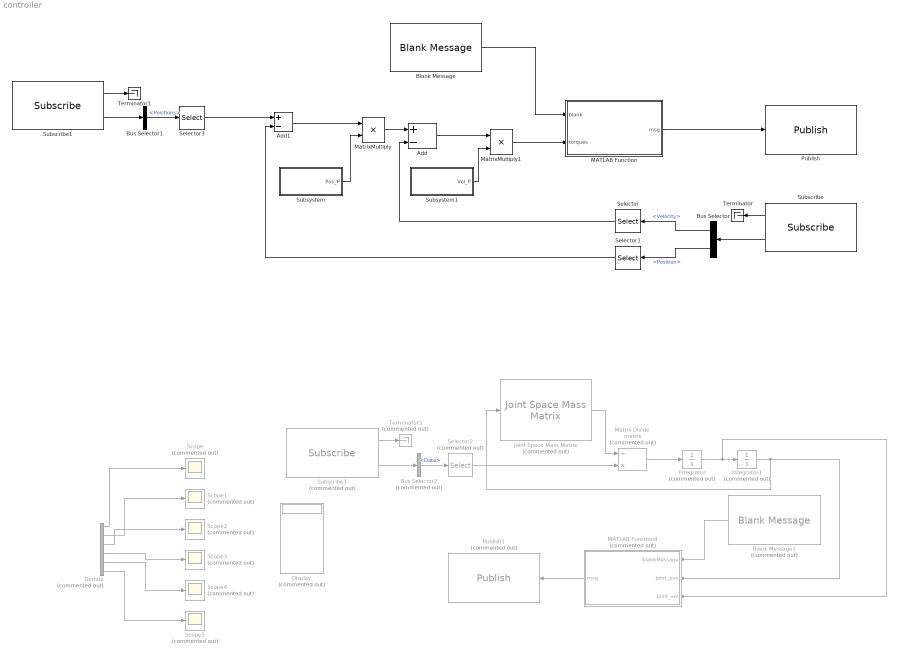
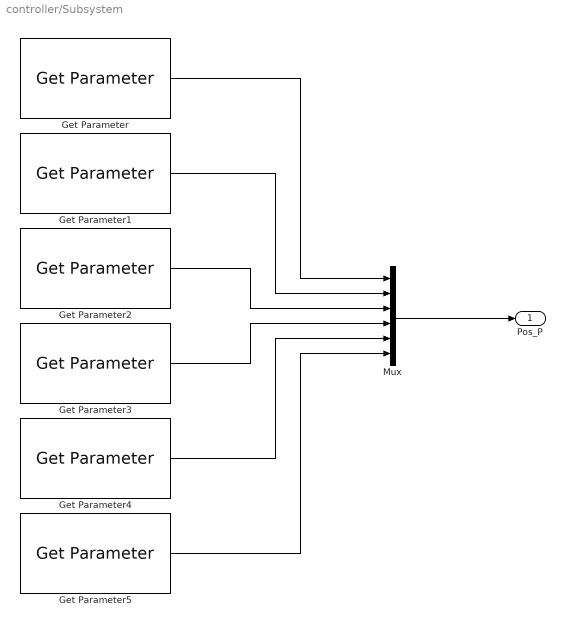
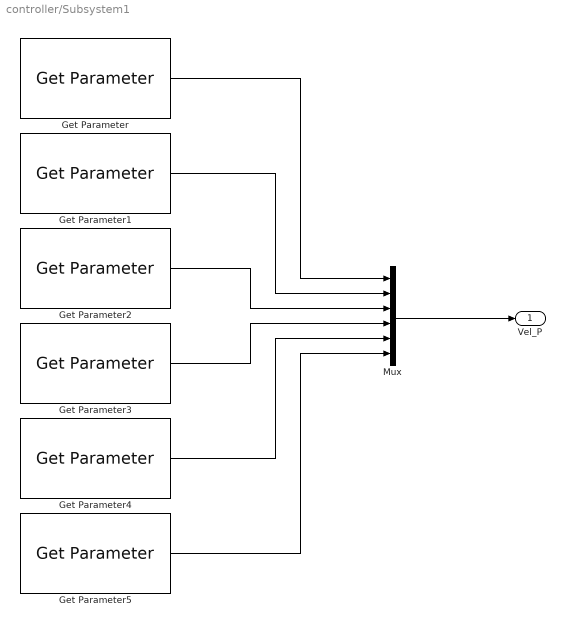
== matlab function controller/MATLAB Function4 ==
function msg = assign_message(blankMessage, joint_pos, joint_vel)

    msg = blankMessage;
    
    num_joints = length(joint_pos);
    
    msg.Position_SL_Info.CurrentLength = uint32(num_joints);
    msg.Velocity_SL_Info.CurrentLength = uint32(num_joints);
    
    for i=1:num_joints
        
        msg.Position(i) = joint_pos(i);
        msg.Velocity(i) = joint_vel(i);
        
    end

== matlab function controller/MATLAB Function ==
function msg = assign_message(blank, torques)

    msg = blank;
    num_joints = length(torques);

    for i=1:num_joints
        msg.Data(i) = torques(i);
    end

    msg.Data_SL_Info.CurrentLength = uint32(num_joints);

    msg.Layout.Dim_SL_Info.CurrentLength = uint32(1);

    msg.Layout.Dim(1).Size = uint32(num_joints);
    msg.Layout.Dim(1).Stride = uint32(num_joints);

//
// Academic License - for use in teaching, academic research, and meeting
// course requirements at degree granting institutions only.  Not for
// government, commercial, or other organizational use.
//
// File: controller.cpp
//
// Code generated for Simulink model 'controller'.
//
// Model version                  : 1.35
// Simulink Coder version         : 9.3 (R2020a) 18-Nov-2019
// C/C++ source code generated on : Wed May 27 21:29:22 2020
//
// Target selection: ert.tlc
// Embedded hardware selection: Generic->Unspecified (assume 32-bit Generic)
// Code generation objectives: Unspecified
// Validation result: Not run
//
#include "controller.h"
#include "controller_private.h"

// Block signals (default storage)
B_controller_T controller_B;

// Block states (default storage)
DW_controller_T controller_DW;

// Real-time model
RT_MODEL_controller_T controller_M_ = RT_MODEL_controller_T();
RT_MODEL_controller_T *const controller_M = &controller_M_;

// Forward declaration for local functions
static void controller_SystemCore_step_j(boolean_T *varargout_1, real_T
  varargout_2_Positions[128], uint32_T *varargout_2_Positions_SL_Info_C,
  uint32_T *varargout_2_Positions_SL_Info_R, real_T varargout_2_Velocities[128],
  uint32_T *varargout_2_Velocities_SL_Info_, uint32_T
  *varargout_2_Velocities_SL_Inf_0, real_T varargout_2_Accelerations[128],
  uint32_T *varargout_2_Accelerations_SL_In, uint32_T
  *varargout_2_Accelerations_SL__0, real_T varargout_2_Effort[128], uint32_T
  *varargout_2_Effort_SL_Info_Curr, uint32_T *varargout_2_Effort_SL_Info_Rece,
  real_T *varargout_2_TimeFromStart_Sec, real_T *varargout_2_TimeFromStart_Nsec);
static void controller_SystemCore_step(boolean_T *varargout_1,
  SL_Bus_controller_std_msgs_String varargout_2_Name[16], uint32_T
  *varargout_2_Name_SL_Info_Curren, uint32_T *varargout_2_Name_SL_Info_Receiv,
  real_T varargout_2_Position[128], uint32_T *varargout_2_Position_SL_Info_Cu,
  uint32_T *varargout_2_Position_SL_Info_Re, real_T varargout_2_Velocity[128],
  uint32_T *varargout_2_Velocity_SL_Info_Cu, uint32_T
  *varargout_2_Velocity_SL_Info_Re, real_T varargout_2_Effort[128], uint32_T
  *varargout_2_Effort_SL_Info_Curr, uint32_T *varargout_2_Effort_SL_Info_Rece,
  SL_Bus_controller_std_msgs_Header *varargout_2_Header);
static void matlabCodegenHandle_matlabCod_j(ros_slros_internal_block_Subs_T *obj);
static void matlabCodegenHandle_matlabC_jmq(ros_slros_internal_block_GetP_T *obj);
static void matlabCodegenHandle_matlabCodeg(ros_slros_internal_block_Publ_T *obj);
static void controller_SystemCore_step_j(boolean_T *varargout_1, real_T
  varargout_2_Positions[128], uint32_T *varargout_2_Positions_SL_Info_C,
  uint32_T *varargout_2_Positions_SL_Info_R, real_T varargout_2_Velocities[128],
  uint32_T *varargout_2_Velocities_SL_Info_, uint32_T
  *varargout_2_Velocities_SL_Inf_0, real_T varargout_2_Accelerations[128],
  uint32_T *varargout_2_Accelerations_SL_In, uint32_T
  *varargout_2_Accelerations_SL__0, real_T varargout_2_Effort[128], uint32_T
  *varargout_2_Effort_SL_Info_Curr, uint32_T *varargout_2_Effort_SL_Info_Rece,
  real_T *varargout_2_TimeFromStart_Sec, real_T *varargout_2_TimeFromStart_Nsec)
{
  *varargout_1 = Sub_controller_136.getLatestMessage
    (&controller_B.b_varargout_2_m);
  *varargout_2_Positions_SL_Info_C =
    controller_B.b_varargout_2_m.Positions_SL_Info.CurrentLength;
  *varargout_2_Positions_SL_Info_R =
    controller_B.b_varargout_2_m.Positions_SL_Info.ReceivedLength;
  *varargout_2_Velocities_SL_Info_ =
    controller_B.b_varargout_2_m.Velocities_SL_Info.CurrentLength;
  *varargout_2_Velocities_SL_Inf_0 =
    controller_B.b_varargout_2_m.Velocities_SL_Info.ReceivedLength;
  *varargout_2_Accelerations_SL_In =
    controller_B.b_varargout_2_m.Accelerations_SL_Info.CurrentLength;
  *varargout_2_Accelerations_SL__0 =
    controller_B.b_varargout_2_m.Accelerations_SL_Info.ReceivedLength;
  memcpy(&varargout_2_Positions[0], &controller_B.b_varargout_2_m.Positions[0],
         sizeof(real_T) << 7U);
  memcpy(&varargout_2_Velocities[0], &controller_B.b_varargout_2_m.Velocities[0],
         sizeof(real_T) << 7U);
  memcpy(&varargout_2_Accelerations[0],
         &controller_B.b_varargout_2_m.Accelerations[0], sizeof(real_T) << 7U);
  memcpy(&varargout_2_Effort[0], &controller_B.b_varargout_2_m.Effort[0], sizeof
         (real_T) << 7U);
  *varargout_2_Effort_SL_Info_Curr =
    controller_B.b_varargout_2_m.Effort_SL_Info.CurrentLength;
  *varargout_2_Effort_SL_Info_Rece =
    controller_B.b_varargout_2_m.Effort_SL_Info.ReceivedLength;
  *varargout_2_TimeFromStart_Sec =
    controller_B.b_varargout_2_m.TimeFromStart.Sec;
  *varargout_2_TimeFromStart_Nsec =
    controller_B.b_varargout_2_m.TimeFromStart.Nsec;
}

static void controller_SystemCore_step(boolean_T *varargout_1,
  SL_Bus_controller_std_msgs_String varargout_2_Name[16], uint32_T
  *varargout_2_Name_SL_Info_Curren, uint32_T *varargout_2_Name_SL_Info_Receiv,
  real_T varargout_2_Position[128], uint32_T *varargout_2_Position_SL_Info_Cu,
  uint32_T *varargout_2_Position_SL_Info_Re, real_T varargout_2_Velocity[128],
  uint32_T *varargout_2_Velocity_SL_Info_Cu, uint32_T
  *varargout_2_Velocity_SL_Info_Re, real_T varargout_2_Effort[128], uint32_T
  *varargout_2_Effort_SL_Info_Curr, uint32_T *varargout_2_Effort_SL_Info_Rece,
  SL_Bus_controller_std_msgs_Header *varargout_2_Header)
{
  *varargout_1 = Sub_controller_5.getLatestMessage(&controller_B.b_varargout_2);
  memcpy(&varargout_2_Name[0], &controller_B.b_varargout_2.Name[0], sizeof
         (SL_Bus_controller_std_msgs_String) << 4U);
  *varargout_2_Name_SL_Info_Curren =
    controller_B.b_varargout_2.Name_SL_Info.CurrentLength;
  *varargout_2_Name_SL_Info_Receiv =
    controller_B.b_varargout_2.Name_SL_Info.ReceivedLength;
  *varargout_2_Position_SL_Info_Cu =
    controller_B.b_varargout_2.Position_SL_Info.CurrentLength;
  *varargout_2_Position_SL_Info_Re =
    controller_B.b_varargout_2.Position_SL_Info.ReceivedLength;
  *varargout_2_Velocity_SL_Info_Cu =
    controller_B.b_varargout_2.Velocity_SL_Info.CurrentLength;
  *varargout_2_Velocity_SL_Info_Re =
    controller_B.b_varargout_2.Velocity_SL_Info.ReceivedLength;
  memcpy(&varargout_2_Position[0], &controller_B.b_varargout_2.Position[0],
         sizeof(real_T) << 7U);
  memcpy(&varargout_2_Velocity[0], &controller_B.b_varargout_2.Velocity[0],
         sizeof(real_T) << 7U);
  memcpy(&varargout_2_Effort[0], &controller_B.b_varargout_2.Effort[0], sizeof
         (real_T) << 7U);
  *varargout_2_Effort_SL_Info_Curr =
    controller_B.b_varargout_2.Effort_SL_Info.CurrentLength;
  *varargout_2_Effort_SL_Info_Rece =
    controller_B.b_varargout_2.Effort_SL_Info.ReceivedLength;
  *varargout_2_Header = controller_B.b_varargout_2.Header;
}

static void matlabCodegenHandle_matlabCod_j(ros_slros_internal_block_Subs_T *obj)
{
  if (!obj->matlabCodegenIsDeleted) {
    obj->matlabCodegenIsDeleted = true;
  }
}

static void matlabCodegenHandle_matlabC_jmq(ros_slros_internal_block_GetP_T *obj)
{
  if (!obj->matlabCodegenIsDeleted) {
    obj->matlabCodegenIsDeleted = true;
  }
}

static void matlabCodegenHandle_matlabCodeg(ros_slros_internal_block_Publ_T *obj)
{
  if (!obj->matlabCodegenIsDeleted) {
    obj->matlabCodegenIsDeleted = true;
  }
}

// Model step function
void controller_step(void)
{
  uint32_T b_varargout_2_Positions_SL_Info;
  uint32_T b_varargout_2_Positions_SL_In_0;
  uint32_T b_varargout_2_Velocities_SL_Inf;
  uint32_T b_varargout_2_Velocities_SL_I_0;
  uint32_T b_varargout_2_Accelerations_SL_;
  uint32_T b_varargout_2_Accelerations_S_0;
  uint32_T b_varargout_2_Effort_SL_Info_Cu;
  uint32_T b_varargout_2_Effort_SL_Info_Re;
  boolean_T b_varargout_1;
  int32_T i;
  real_T tmp;
  real_T tmp_0;
  real_T tmp_1;

  // Outputs for Atomic SubSystem: '<Root>/Subscribe1'
  // MATLABSystem: '<S5>/SourceBlock' incorporates:
  //   Inport: '<S9>/In1'

  controller_SystemCore_step_j(&b_varargout_1,
    controller_B.b_varargout_2_Positions, &b_varargout_2_Positions_SL_Info,
    &b_varargout_2_Positions_SL_In_0, controller_B.b_varargout_2_Velocities,
    &b_varargout_2_Velocities_SL_Inf, &b_varargout_2_Velocities_SL_I_0,
    controller_B.b_varargout_2_Accelerations, &b_varargout_2_Accelerations_SL_,
    &b_varargout_2_Accelerations_S_0, controller_B.b_varargout_2_Effort,
    &b_varargout_2_Effort_SL_Info_Cu, &b_varargout_2_Effort_SL_Info_Re,
    &controller_B.b_varargout_2_TimeFromStart_Sec,
    &controller_B.b_varargout_2_TimeFromStart_Nse);

  // Outputs for Enabled SubSystem: '<S5>/Enabled Subsystem' incorporates:
  //   EnablePort: '<S9>/Enable'

  if (b_varargout_1) {
    controller_B.In1_l.Positions_SL_Info.CurrentLength =
      b_varargout_2_Positions_SL_Info;
    controller_B.In1_l.Positions_SL_Info.ReceivedLength =
      b_varargout_2_Positions_SL_In_0;
    controller_B.In1_l.Velocities_SL_Info.CurrentLength =
      b_varargout_2_Velocities_SL_Inf;
    controller_B.In1_l.Velocities_SL_Info.ReceivedLength =
      b_varargout_2_Velocities_SL_I_0;
    controller_B.In1_l.Accelerations_SL_Info.CurrentLength =
      b_varargout_2_Accelerations_SL_;
    controller_B.In1_l.Accelerations_SL_Info.ReceivedLength =
      b_varargout_2_Accelerations_S_0;
    memcpy(&controller_B.In1_l.Positions[0],
           &controller_B.b_varargout_2_Positions[0], sizeof(real_T) << 7U);
    memcpy(&controller_B.In1_l.Velocities[0],
           &controller_B.b_varargout_2_Velocities[0], sizeof(real_T) << 7U);
    memcpy(&controller_B.In1_l.Accelerations[0],
           &controller_B.b_varargout_2_Accelerations[0], sizeof(real_T) << 7U);
    memcpy(&controller_B.In1_l.Effort[0], &controller_B.b_varargout_2_Effort[0],
           sizeof(real_T) << 7U);
    controller_B.In1_l.Effort_SL_Info.CurrentLength =
      b_varargout_2_Effort_SL_Info_Cu;
    controller_B.In1_l.Effort_SL_Info.ReceivedLength =
      b_varargout_2_Effort_SL_Info_Re;
    controller_B.In1_l.TimeFromStart.Sec =
      controller_B.b_varargout_2_TimeFromStart_Sec;
    controller_B.In1_l.TimeFromStart.Nsec =
      controller_B.b_varargout_2_TimeFromStart_Nse;
  }

  // End of MATLABSystem: '<S5>/SourceBlock'
  // End of Outputs for SubSystem: '<S5>/Enabled Subsystem'
  // End of Outputs for SubSystem: '<Root>/Subscribe1'

  // Outputs for Atomic SubSystem: '<Root>/Subscribe'
  // MATLABSystem: '<S4>/SourceBlock' incorporates:
  //   Inport: '<S8>/In1'

  controller_SystemCore_step(&b_varargout_1, controller_B.b_varargout_2_Name,
    &b_varargout_2_Positions_SL_Info, &b_varargout_2_Positions_SL_In_0,
    controller_B.b_varargout_2_Positions, &b_varargout_2_Velocities_SL_Inf,
    &b_varargout_2_Velocities_SL_I_0, controller_B.b_varargout_2_Velocities,
    &b_varargout_2_Accelerations_SL_, &b_varargout_2_Accelerations_S_0,
    controller_B.b_varargout_2_Effort, &b_varargout_2_Effort_SL_Info_Cu,
    &b_varargout_2_Effort_SL_Info_Re, &controller_B.b_varargout_2_Header);

  // Outputs for Enabled SubSystem: '<S4>/Enabled Subsystem' incorporates:
  //   EnablePort: '<S8>/Enable'

  if (b_varargout_1) {
    memcpy(&controller_B.In1.Name[0], &controller_B.b_varargout_2_Name[0],
           sizeof(SL_Bus_controller_std_msgs_String) << 4U);
    controller_B.In1.Name_SL_Info.CurrentLength =
      b_varargout_2_Positions_SL_Info;
    controller_B.In1.Name_SL_Info.ReceivedLength =
      b_varargout_2_Positions_SL_In_0;
    controller_B.In1.Position_SL_Info.CurrentLength =
      b_varargout_2_Velocities_SL_Inf;
    controller_B.In1.Position_SL_Info.ReceivedLength =
      b_varargout_2_Velocities_SL_I_0;
    controller_B.In1.Velocity_SL_Info.CurrentLength =
      b_varargout_2_Accelerations_SL_;
    controller_B.In1.Velocity_SL_Info.ReceivedLength =
      b_varargout_2_Accelerations_S_0;
    memcpy(&controller_B.In1.Position[0], &controller_B.b_varargout_2_Positions
           [0], sizeof(real_T) << 7U);
    memcpy(&controller_B.In1.Velocity[0],
           &controller_B.b_varargout_2_Velocities[0], sizeof(real_T) << 7U);
    memcpy(&controller_B.In1.Effort[0], &controller_B.b_varargout_2_Effort[0],
           sizeof(real_T) << 7U);
    controller_B.In1.Effort_SL_Info.CurrentLength =
      b_varargout_2_Effort_SL_Info_Cu;
    controller_B.In1.Effort_SL_Info.ReceivedLength =
      b_varargout_2_Effort_SL_Info_Re;
    controller_B.In1.Header = controller_B.b_varargout_2_Header;
  }

  // End of MATLABSystem: '<S4>/SourceBlock'
  // End of Outputs for SubSystem: '<S4>/Enabled Subsystem'
  // End of Outputs for SubSystem: '<Root>/Subscribe'

  // Sum: '<Root>/Add1'
  for (i = 0; i < 6; i++) {
    controller_B.Add[i] = controller_B.In1_l.Positions[i] -
      controller_B.In1.Position[i];
  }

  // End of Sum: '<Root>/Add1'

  // MATLABSystem: '<S6>/Get Parameter'
  ParamGet_controller_93.get_parameter
    (&controller_B.b_varargout_2_TimeFromStart_Sec);

  // MATLABSystem: '<S6>/Get Parameter1'
  ParamGet_controller_94.get_parameter
    (&controller_B.b_varargout_2_TimeFromStart_Nse);

  // MATLABSystem: '<S6>/Get Parameter2'
  ParamGet_controller_95.get_parameter(&controller_B.value);

  // MATLABSystem: '<S6>/Get Parameter3'
  ParamGet_controller_96.get_parameter(&controller_B.value_c);

  // MATLABSystem: '<S6>/Get Parameter4'
  ParamGet_controller_97.get_parameter(&controller_B.value_k);

  // MATLABSystem: '<S6>/Get Parameter5'
  ParamGet_controller_98.get_parameter(&controller_B.value_cx);

  // Product: '<Root>/MatrixMultiply' incorporates:
  //   MATLABSystem: '<S6>/Get Parameter'
  //   MATLABSystem: '<S6>/Get Parameter1'
  //   MATLABSystem: '<S6>/Get Parameter2'
  //   MATLABSystem: '<S6>/Get Parameter3'
  //   MATLABSystem: '<S6>/Get Parameter4'
  //   MATLABSystem: '<S6>/Get Parameter5'

  controller_B.d = controller_B.Add[0];
  controller_B.d1 = controller_B.Add[1];
  controller_B.d2 = controller_B.Add[2];
  tmp = controller_B.Add[3];
  tmp_0 = controller_B.Add[4];
  tmp_1 = controller_B.Add[5];
  controller_B.Add[0] = controller_B.d *
    controller_B.b_varargout_2_TimeFromStart_Sec;
  controller_B.Add[1] = controller_B.d1 *
    controller_B.b_varargout_2_TimeFromStart_Nse;
  controller_B.Add[2] = controller_B.d2 * controller_B.value;
  controller_B.Add[3] = tmp * controller_B.value_c;
  controller_B.Add[4] = tmp_0 * controller_B.value_k;
  controller_B.Add[5] = tmp_1 * controller_B.value_cx;

  // Sum: '<Root>/Add'
  for (i = 0; i < 6; i++) {
    controller_B.Add[i] -= controller_B.In1.Velocity[i];
  }

  // End of Sum: '<Root>/Add'

  // MATLABSystem: '<S7>/Get Parameter'
  ParamGet_controller_103.get_parameter
    (&controller_B.b_varargout_2_TimeFromStart_Sec);

  // MATLABSystem: '<S7>/Get Parameter1'
  ParamGet_controller_104.get_parameter
    (&controller_B.b_varargout_2_TimeFromStart_Nse);

  // MATLABSystem: '<S7>/Get Parameter2'
  ParamGet_controller_105.get_parameter(&controller_B.value);

  // MATLABSystem: '<S7>/Get Parameter3'
  ParamGet_controller_106.get_parameter(&controller_B.value_c);

  // MATLABSystem: '<S7>/Get Parameter4'
  ParamGet_controller_107.get_parameter(&controller_B.value_k);

  // MATLABSystem: '<S7>/Get Parameter5'
  ParamGet_controller_108.get_parameter(&controller_B.value_cx);

  // Product: '<Root>/MatrixMultiply1' incorporates:
  //   MATLABSystem: '<S7>/Get Parameter'
  //   MATLABSystem: '<S7>/Get Parameter1'
  //   MATLABSystem: '<S7>/Get Parameter2'
  //   MATLABSystem: '<S7>/Get Parameter3'
  //   MATLABSystem: '<S7>/Get Parameter4'
  //   MATLABSystem: '<S7>/Get Parameter5'

  controller_B.MatrixMultiply1[0] = controller_B.Add[0] *
    controller_B.b_varargout_2_TimeFromStart_Sec;
  controller_B.MatrixMultiply1[1] = controller_B.Add[1] *
    controller_B.b_varargout_2_TimeFromStart_Nse;
  controller_B.MatrixMultiply1[2] = controller_B.Add[2] * controller_B.value;
  controller_B.MatrixMultiply1[3] = controller_B.Add[3] * controller_B.value_c;
  controller_B.MatrixMultiply1[4] = controller_B.Add[4] * controller_B.value_k;
  controller_B.MatrixMultiply1[5] = controller_B.Add[5] * controller_B.value_cx;

  // MATLAB Function: '<Root>/MATLAB Function' incorporates:
  //   Constant: '<S1>/Constant'

  controller_B.msg = controller_P.Constant_Value_d;
  for (i = 0; i < 6; i++) {
    controller_B.msg.Data[i] = controller_B.MatrixMultiply1[i];
  }

  controller_B.msg.Data_SL_Info.CurrentLength = 6U;
  controller_B.msg.Layout.Dim_SL_Info.CurrentLength = 1U;
  controller_B.msg.Layout.Dim[0].Size = 6U;
  controller_B.msg.Layout.Dim[0].Stride = 6U;

  // End of MATLAB Function: '<Root>/MATLAB Function'

  // Outputs for Atomic SubSystem: '<Root>/Publish'
  // MATLABSystem: '<S3>/SinkBlock'
  Pub_controller_4.publish(&controller_B.msg);

  // End of Outputs for SubSystem: '<Root>/Publish'
}
